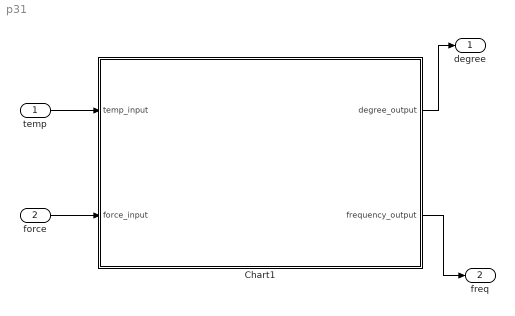
== stateflow chart p31/Chart1 ==
  state state2 [parallel]
    state fsr402
      entry:
    (default) -> fsr402
    fsr402 -> fsr402 [order 2] : [timerforce<2]{timerforce = timerforce+1;}
    fsr402 -> fsr402 [order 1] : [timerforce>=2]{degree_output = (force_input * 18);timerforce =0;}
  state state [parallel]
    state temp36
    (default) -> temp36
    temp36 -> temp36 [order 2] : [timertemp<1]{timertemp = timertemp+1;}
    temp36 -> temp36 [order 1] : [timertemp>=1]{frequency_output = (temp_input-20);   timertemp = 0;}
  (default) -> state2 [order 2]
  (default) -> state [order 1]
  data: temp_input input fixdt(1,16,4); force_input input fixdt(1,16,4); degree_output output fixdt(1,16,4); frequency_output output fixdt(1,16,10); timerforce local fixdt(0,16,14); timertemp local fixdt(0,16,15)

/*
 * File: p31.c
 *
 * Code generated for Simulink model 'p31'.
 *
 * Model version                  : 1.27
 * Simulink Coder version         : 9.5 (R2021a) 14-Nov-2020
 * C/C++ source code generated on : Sun Jan  2 13:34:06 2022
 *
 * Target selection: ert.tlc
 * Embedded hardware selection: Atmel->AVR
 * Code generation objectives:
 *    1. Execution efficiency
 *    2. Traceability
 * Validation result: Not run
 */

#include "p31.h"
#include "p31_private.h"

/* Block signals (default storage) */
B_p31_T p31_B;

/* Block states (default storage) */
DW_p31_T p31_DW;

/* External inputs (root inport signals with default storage) */
ExtU_p31_T p31_U;

/* External outputs (root outports fed by signals with default storage) */
ExtY_p31_T p31_Y;

/* Real-time model */
static RT_MODEL_p31_T p31_M_;
RT_MODEL_p31_T *const p31_M = &p31_M_;
static void rate_monotonic_scheduler(void);

/*
 * Set which subrates need to run this base step (base rate always runs).
 * This function must be called prior to calling the model step function
 * in order to "remember" which rates need to run this base step.  The
 * buffering of events allows for overlapping preemption.
 */
void p31_SetEventsForThisBaseStep(boolean_T *eventFlags)
{
  /* Task runs when its counter is zero, computed via rtmStepTask macro */
  eventFlags[1] = ((boolean_T)rtmStepTask(p31_M, 1));
}

/*
 *   This function updates active task flag for each subrate
 * and rate transition flags for tasks that exchange data.
 * The function assumes rate-monotonic multitasking scheduler.
 * The function must be called at model base rate so that
 * the generated code self-manages all its subrates and rate
 * transition flags.
 */
static void rate_monotonic_scheduler(void)
{
  /* Compute which subrates run during the next base time step.  Subrates
   * are an integer multiple of the base rate counter.  Therefore, the subtask
   * counter is reset when it reaches its limit (zero means run).
   */
  (p31_M->Timing.TaskCounters.TID[1])++;
  if ((p31_M->Timing.TaskCounters.TID[1]) > 44099) {/* Sample time: [1.0s, 0.0s] */
    p31_M->Timing.TaskCounters.TID[1] = 0;
  }
}

/* Model step function for TID0 */
void p31_step0(void)           /* Sample time: [2.2675736961451248E-5s, 0.0s] */
{
  {                            /* Sample time: [2.2675736961451248E-5s, 0.0s] */
    rate_monotonic_scheduler();
  }
}

/* Model step function for TID1 */
void p31_step1(void)                   /* Sample time: [1.0s, 0.0s] */
{
  int32_T tmp;
  int16_T qY;

  /* Chart: '<Root>/Chart1' incorporates:
   *  Inport: '<Root>/force'
   *  Inport: '<Root>/temp'
   */
  if (p31_DW.is_active_c1_p31 == 0U) {
    p31_DW.is_active_c1_p31 = 1U;
  } else {
    if (p31_DW.timerforce >= 32768U) {
      tmp = p31_U.force * 18L;
      if (tmp > 32767L) {
        tmp = 32767L;
      } else if (tmp < -32768L) {
        tmp = -32768L;
      }

      p31_B.degree_output = (int16_T)tmp;
      p31_DW.timerforce = 0U;
    } else if (p31_DW.timerforce < 32768U) {
      qY = (int16_T)(p31_DW.timerforce >> 6) + 256;
      if (qY > 1023) {
        p31_DW.timerforce = MAX_uint16_T;
      } else {
        p31_DW.timerforce = (uint16_T)qY << 6;
      }
    }

    if (p31_DW.timertemp >= 32768U) {
      if (p31_U.temp < -32448) {
        qY = MIN_int16_T;
      } else {
        qY = p31_U.temp - 320;
      }

      if (qY > 511) {
        p31_B.frequency_output = MAX_int16_T;
      } else if (qY <= -512) {
        p31_B.frequency_output = MIN_int16_T;
      } else {
        p31_B.frequency_output = qY << 6;
      }

      p31_DW.timertemp = 0U;
    } else if (p31_DW.timertemp < 32768U) {
      qY = (int16_T)(p31_DW.timertemp >> 7) + 256;
      if (qY > 511) {
        p31_DW.timertemp = MAX_uint16_T;
      } else {
        p31_DW.timertemp = (uint16_T)qY << 7;
      }
    }
  }

  /* End of Chart: '<Root>/Chart1' */

  /* Outport: '<Root>/degree' */
  p31_Y.degree = p31_B.degree_output;

  /* Outport: '<Root>/freq' */
  p31_Y.freq = p31_B.frequency_output;
}
